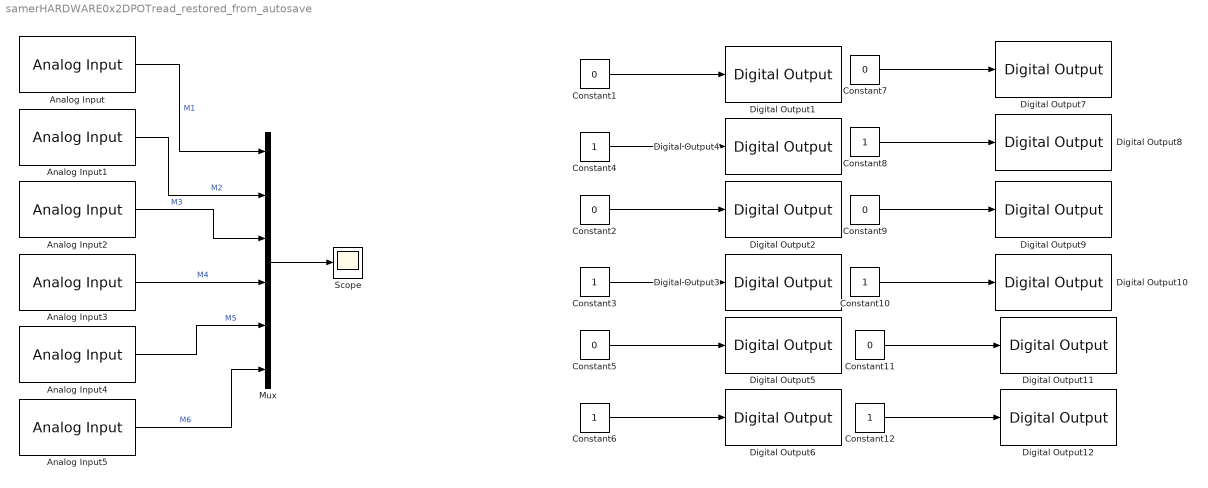
/*
 * samerHARDWARE0x2DPOTread_restored_from_autosave.c
 *
 * Code generation for model "samerHARDWARE0x2DPOTread_restored_from_autosave".
 *
 * Model version              : 6.11
 * Simulink Coder version : 25.2 (R2025b) 28-Jul-2025
 * C source code generated on : Sun Jul 12 04:06:30 2026
 *
 * Target selection: ert.tlc
 * Note: GRT includes extra infrastructure and instrumentation for prototyping
 * Embedded hardware selection: Atmel->AVR
 * Code generation objectives: Unspecified
 * Validation result: Not run
 */

#include "samerHARDWARE0x2DPOTread_restored_from_autosave.h"
#include "samerHARDWARE0x2DPOTread_restored_from_autosave_private.h"
#include "rtwtypes.h"
#include <string.h>
#include <math.h>

/* Block signals (default storage) */
B_samerHARDWARE0x2DPOTread_re_T samerHARDWARE0x2DPOTread_rest_B;

/* Block states (default storage) */
DW_samerHARDWARE0x2DPOTread_r_T samerHARDWARE0x2DPOTread_res_DW;

/* Real-time model */
static RT_MODEL_samerHARDWARE0x2DPOT_T samerHARDWARE0x2DPOTread_res_M_;
RT_MODEL_samerHARDWARE0x2DPOT_T *const samerHARDWARE0x2DPOTread_res_M =
  &samerHARDWARE0x2DPOTread_res_M_;
real_T rt_roundd_snf(real_T u)
{
  real_T y;
  if (fabs(u) < 4.503599627370496E+15) {
    if (u >= 0.5) {
      y = floor(u + 0.5);
    } else if (u > -0.5) {
      y = u * 0.0;
    } else {
      y = ceil(u - 0.5);
    }
  } else {
    y = u;
  }

  return y;
}

/* Model step function */
void samerHARDWARE0x2DPOTread_restored_from_autosave_step(void)
{
  real_T tmp;
  uint8_T tmp_0;

  /* MATLABSystem: '<Root>/Analog Input' */
  samerHARDWARE0x2DPOTread_res_DW.obj_ar.AnalogInDriverObj.MW_ANALOGIN_HANDLE =
    MW_AnalogIn_GetHandle(54UL);

  /* MATLABSystem: '<Root>/Analog Input' */
  MW_AnalogInSingle_ReadResult
    (samerHARDWARE0x2DPOTread_res_DW.obj_ar.AnalogInDriverObj.MW_ANALOGIN_HANDLE,
     &samerHARDWARE0x2DPOTread_rest_B.M1, MW_ANALOGIN_UINT16);

  /* MATLABSystem: '<Root>/Analog Input1' */
  samerHARDWARE0x2DPOTread_res_DW.obj_p.AnalogInDriverObj.MW_ANALOGIN_HANDLE =
    MW_AnalogIn_GetHandle(55UL);

  /* MATLABSystem: '<Root>/Analog Input1' */
  MW_AnalogInSingle_ReadResult
    (samerHARDWARE0x2DPOTread_res_DW.obj_p.AnalogInDriverObj.MW_ANALOGIN_HANDLE,
     &samerHARDWARE0x2DPOTread_rest_B.M2, MW_ANALOGIN_UINT16);

  /* MATLABSystem: '<Root>/Analog Input2' */
  samerHARDWARE0x2DPOTread_res_DW.obj_l.AnalogInDriverObj.MW_ANALOGIN_HANDLE =
    MW_AnalogIn_GetHandle(56UL);

  /* MATLABSystem: '<Root>/Analog Input2' */
  MW_AnalogInSingle_ReadResult
    (samerHARDWARE0x2DPOTread_res_DW.obj_l.AnalogInDriverObj.MW_ANALOGIN_HANDLE,
     &samerHARDWARE0x2DPOTread_rest_B.M3, MW_ANALOGIN_UINT16);

  /* MATLABSystem: '<Root>/Analog Input3' */
  samerHARDWARE0x2DPOTread_res_DW.obj_a.AnalogInDriverObj.MW_ANALOGIN_HANDLE =
    MW_AnalogIn_GetHandle(57UL);

  /* MATLABSystem: '<Root>/Analog Input3' */
  MW_AnalogInSingle_ReadResult
    (samerHARDWARE0x2DPOTread_res_DW.obj_a.AnalogInDriverObj.MW_ANALOGIN_HANDLE,
     &samerHARDWARE0x2DPOTread_rest_B.M4, MW_ANALOGIN_UINT16);

  /* MATLABSystem: '<Root>/Analog Input4' */
  samerHARDWARE0x2DPOTread_res_DW.obj_n.AnalogInDriverObj.MW_ANALOGIN_HANDLE =
    MW_AnalogIn_GetHandle(58UL);

  /* MATLABSystem: '<Root>/Analog Input4' */
  MW_AnalogInSingle_ReadResult
    (samerHARDWARE0x2DPOTread_res_DW.obj_n.AnalogInDriverObj.MW_ANALOGIN_HANDLE,
     &samerHARDWARE0x2DPOTread_rest_B.M5, MW_ANALOGIN_UINT16);

  /* MATLABSystem: '<Root>/Analog Input5' */
  samerHARDWARE0x2DPOTread_res_DW.obj.AnalogInDriverObj.MW_ANALOGIN_HANDLE =
    MW_AnalogIn_GetHandle(59UL);

  /* MATLABSystem: '<Root>/Analog Input5' */
  MW_AnalogInSingle_ReadResult
    (samerHARDWARE0x2DPOTread_res_DW.obj.AnalogInDriverObj.MW_ANALOGIN_HANDLE,
     &samerHARDWARE0x2DPOTread_rest_B.M6, MW_ANALOGIN_UINT16);

  /* SignalConversion generated from: '<Root>/Mux' */
  samerHARDWARE0x2DPOTread_rest_B.TmpSignalConversionAtTAQSigLogg[0] =
    samerHARDWARE0x2DPOTread_rest_B.M1;
  samerHARDWARE0x2DPOTread_rest_B.TmpSignalConversionAtTAQSigLogg[1] =
    samerHARDWARE0x2DPOTread_rest_B.M2;
  samerHARDWARE0x2DPOTread_rest_B.TmpSignalConversionAtTAQSigLogg[2] =
    samerHARDWARE0x2DPOTread_rest_B.M3;
  samerHARDWARE0x2DPOTread_rest_B.TmpSignalConversionAtTAQSigLogg[3] =
    samerHARDWARE0x2DPOTread_rest_B.M4;
  samerHARDWARE0x2DPOTread_rest_B.TmpSignalConversionAtTAQSigLogg[4] =
    samerHARDWARE0x2DPOTread_rest_B.M5;
  samerHARDWARE0x2DPOTread_rest_B.TmpSignalConversionAtTAQSigLogg[5] =
    samerHARDWARE0x2DPOTread_rest_B.M6;

  /* MATLABSystem: '<Root>/Digital Output1' incorporates:
   *  Constant: '<Root>/Constant1'
   */
  tmp = rt_roundd_snf(samerHARDWARE0x2DPOTread_rest_P.Constant1_Value);
  if (tmp < 256.0) {
    if (tmp >= 0.0) {
      tmp_0 = (uint8_T)tmp;
    } else {
      tmp_0 = 0U;
    }
  } else {
    tmp_0 = MAX_uint8_T;
  }

  writeDigitalPin(2, tmp_0);

  /* End of MATLABSystem: '<Root>/Digital Output1' */

  /* MATLABSystem: '<Root>/Digital Output10' incorporates:
   *  Constant: '<Root>/Constant10'
   */
  tmp = rt_roundd_snf(samerHARDWARE0x2DPOTread_rest_P.Constant10_Value);
  if (tmp < 256.0) {
    if (tmp >= 0.0) {
      tmp_0 = (uint8_T)tmp;
    } else {
      tmp_0 = 0U;
    }
  } else {
    tmp_0 = MAX_uint8_T;
  }

  writeDigitalPin(11, tmp_0);

  /* End of MATLABSystem: '<Root>/Digital Output10' */

  /* MATLABSystem: '<Root>/Digital Output11' incorporates:
   *  Constant: '<Root>/Constant11'
   */
  tmp = rt_roundd_snf(samerHARDWARE0x2DPOTread_rest_P.Constant11_Value);
  if (tmp < 256.0) {
    if (tmp >= 0.0) {
      tmp_0 = (uint8_T)tmp;
    } else {
      tmp_0 = 0U;
    }
  } else {
    tmp_0 = MAX_uint8_T;
  }

  writeDigitalPin(12, tmp_0);

  /* End of MATLABSystem: '<Root>/Digital Output11' */

  /* MATLABSystem: '<Root>/Digital Output12' incorporates:
   *  Constant: '<Root>/Constant12'
   */
  tmp = rt_roundd_snf(samerHARDWARE0x2DPOTread_rest_P.Constant12_Value);
  if (tmp < 256.0) {
    if (tmp >= 0.0) {
      tmp_0 = (uint8_T)tmp;
    } else {
      tmp_0 = 0U;
    }
  } else {
    tmp_0 = MAX_uint8_T;
  }

  writeDigitalPin(13, tmp_0);

  /* End of MATLABSystem: '<Root>/Digital Output12' */

  /* MATLABSystem: '<Root>/Digital Output2' incorporates:
   *  Constant: '<Root>/Constant2'
   */
  tmp = rt_roundd_snf(samerHARDWARE0x2DPOTread_rest_P.Constant2_Value);
  if (tmp < 256.0) {
    if (tmp >= 0.0) {
      tmp_0 = (uint8_T)tmp;
    } else {
      tmp_0 = 0U;
    }
  } else {
    tmp_0 = MAX_uint8_T;
  }

  writeDigitalPin(4, tmp_0);

  /* End of MATLABSystem: '<Root>/Digital Output2' */

  /* MATLABSystem: '<Root>/Digital Output3' incorporates:
   *  Constant: '<Root>/Constant3'
   */
  tmp = rt_roundd_snf(samerHARDWARE0x2DPOTread_rest_P.Constant3_Value);
  if (tmp < 256.0) {
    if (tmp >= 0.0) {
      tmp_0 = (uint8_T)tmp;
    } else {
      tmp_0 = 0U;
    }
  } else {
    tmp_0 = MAX_uint8_T;
  }

  writeDigitalPin(5, tmp_0);

  /* End of MATLABSystem: '<Root>/Digital Output3' */

  /* MATLABSystem: '<Root>/Digital Output4' incorporates:
   *  Constant: '<Root>/Constant4'
   */
  tmp = rt_roundd_snf(samerHARDWARE0x2DPOTread_rest_P.Constant4_Value);
  if (tmp < 256.0) {
    if (tmp >= 0.0) {
      tmp_0 = (uint8_T)tmp;
    } else {
      tmp_0 = 0U;
    }
  } else {
    tmp_0 = MAX_uint8_T;
  }

  writeDigitalPin(3, tmp_0);

  /* End of MATLABSystem: '<Root>/Digital Output4' */

  /* MATLABSystem: '<Root>/Digital Output5' incorporates:
   *  Constant: '<Root>/Constant5'
   */
  tmp = rt_roundd_snf(samerHARDWARE0x2DPOTread_rest_P.Constant5_Value);
  if (tmp < 256.0) {
    if (tmp >= 0.0) {
      tmp_0 = (uint8_T)tmp;
    } else {
      tmp_0 = 0U;
    }
  } else {
    tmp_0 = MAX_uint8_T;
  }

  writeDigitalPin(6, tmp_0);

  /* End of MATLABSystem: '<Root>/Digital Output5' */

  /* MATLABSystem: '<Root>/Digital Output6' incorporates:
   *  Constant: '<Root>/Constant6'
   */
  tmp = rt_roundd_snf(samerHARDWARE0x2DPOTread_rest_P.Constant6_Value);
  if (tmp < 256.0) {
    if (tmp >= 0.0) {
      tmp_0 = (uint8_T)tmp;
    } else {
      tmp_0 = 0U;
    }
  } else {
    tmp_0 = MAX_uint8_T;
  }

  writeDigitalPin(7, tmp_0);

  /* End of MATLABSystem: '<Root>/Digital Output6' */

  /* MATLABSystem: '<Root>/Digital Output7' incorporates:
   *  Constant: '<Root>/Constant7'
   */
  tmp = rt_roundd_snf(samerHARDWARE0x2DPOTread_rest_P.Constant7_Value);
  if (tmp < 256.0) {
    if (tmp >= 0.0) {
      tmp_0 = (uint8_T)tmp;
    } else {
      tmp_0 = 0U;
    }
  } else {
    tmp_0 = MAX_uint8_T;
  }

  writeDigitalPin(8, tmp_0);

  /* End of MATLABSystem: '<Root>/Digital Output7' */

  /* MATLABSystem: '<Root>/Digital Output8' incorporates:
   *  Constant: '<Root>/Constant8'
   */
  tmp = rt_roundd_snf(samerHARDWARE0x2DPOTread_rest_P.Constant8_Value);
  if (tmp < 256.0) {
    if (tmp >= 0.0) {
      tmp_0 = (uint8_T)tmp;
    } else {
      tmp_0 = 0U;
    }
  } else {
    tmp_0 = MAX_uint8_T;
  }

  writeDigitalPin(9, tmp_0);

  /* End of MATLABSystem: '<Root>/Digital Output8' */

  /* MATLABSystem: '<Root>/Digital Output9' incorporates:
   *  Constant: '<Root>/Constant9'
   */
  tmp = rt_roundd_snf(samerHARDWARE0x2DPOTread_rest_P.Constant9_Value);
  if (tmp < 256.0) {
    if (tmp >= 0.0) {
      tmp_0 = (uint8_T)tmp;
    } else {
      tmp_0 = 0U;
    }
  } else {
    tmp_0 = MAX_uint8_T;
  }

  writeDigitalPin(10, tmp_0);

  /* End of MATLABSystem: '<Root>/Digital Output9' */

  /* Update absolute time for base rate */
  /* The "clockTick0" counts the number of times the code of this task has
   * been executed. The resolution of this integer timer is 0.01, which is the step size
   * of the task. Size of "clockTick0" ensures timer will not overflow during the
   * application lifespan selected.
   * Timer of this task consists of two 32 bit unsigned integers.
   * The two integers represent the low bits Timing.clockTick0 and the high bits
   * Timing.clockTickH0. When the low bit overflows to 0, the high bits increment.
   */
  samerHARDWARE0x2DPOTread_res_M->Timing.clockTick0++;
  if (!samerHARDWARE0x2DPOTread_res_M->Timing.clockTick0) {
    samerHARDWARE0x2DPOTread_res_M->Timing.clockTickH0++;
  }
}
